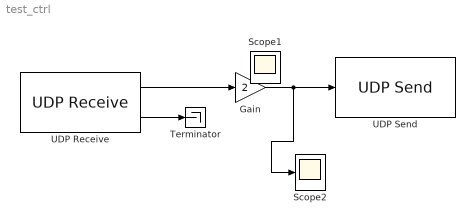
/*
 * Academic License - for use in teaching, academic research, and meeting
 * course requirements at degree granting institutions only.  Not for
 * government, commercial, or other organizational use.
 *
 * File: test_ctrl.c
 *
 * Code generated for Simulink model 'test_ctrl'.
 *
 * Model version                  : 6.3
 * Simulink Coder version         : 9.9 (R2023a) 19-Nov-2022
 * C/C++ source code generated on : Tue Dec  5 20:11:33 2023
 *
 * Target selection: ert.tlc
 * Embedded hardware selection: ARM Compatible->ARM Cortex
 * Code generation objectives: Unspecified
 * Validation result: Not run
 */

#include "test_ctrl.h"
#include "rtwtypes.h"
#include "test_ctrl_private.h"

/* Block signals (default storage) */
B_test_ctrl_T test_ctrl_B;

/* Block states (default storage) */
DW_test_ctrl_T test_ctrl_DW;

/* Real-time model */
static RT_MODEL_test_ctrl_T test_ctrl_M_;
RT_MODEL_test_ctrl_T *const test_ctrl_M = &test_ctrl_M_;

/* Model step function */
void test_ctrl_step(void)
{
  int32_T samplesRead;
  char_T *sErr;

  /* S-Function (sdspFromNetwork): '<Root>/UDP Receive' */
  sErr = GetErrorBuffer(&test_ctrl_DW.UDPReceive_NetworkLib[0U]);
  samplesRead = 1;
  LibOutputs_Network(&test_ctrl_DW.UDPReceive_NetworkLib[0U],
                     &test_ctrl_B.UDPReceive_o1, &samplesRead);
  if (*sErr != 0) {
    rtmSetErrorStatus(test_ctrl_M, sErr);
    rtmSetStopRequested(test_ctrl_M, 1);
  }

  /* End of S-Function (sdspFromNetwork): '<Root>/UDP Receive' */

  /* Gain: '<Root>/Gain' */
  test_ctrl_B.Gain = test_ctrl_P.Gain_Gain * test_ctrl_B.UDPReceive_o1;

  /* Update for S-Function (sdspToNetwork): '<Root>/UDP Send' */
  sErr = GetErrorBuffer(&test_ctrl_DW.UDPSend_NetworkLib[0U]);
  LibUpdate_Network(&test_ctrl_DW.UDPSend_NetworkLib[0U], &test_ctrl_B.Gain, 1);
  if (*sErr != 0) {
    rtmSetErrorStatus(test_ctrl_M, sErr);
    rtmSetStopRequested(test_ctrl_M, 1);
  }

  /* End of Update for S-Function (sdspToNetwork): '<Root>/UDP Send' */
  {                                    /* Sample time: [1.0s, 0.0s] */
  }

  /* Update absolute time for base rate */
  /* The "clockTick0" counts the number of times the code of this task has
   * been executed. The absolute time is the multiplication of "clockTick0"
   * and "Timing.stepSize0". Size of "clockTick0" ensures timer will not
   * overflow during the application lifespan selected.
   */
  test_ctrl_M->Timing.taskTime0 =
    ((time_T)(++test_ctrl_M->Timing.clockTick0)) * test_ctrl_M->Timing.stepSize0;
}
